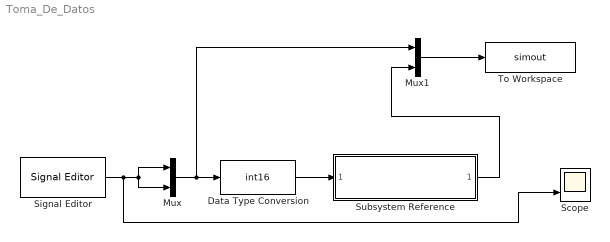
/*
 * Academic License - for use in teaching, academic research, and meeting
 * course requirements at degree granting institutions only.  Not for
 * government, commercial, or other organizational use.
 *
 * File: Toma_De_Datos.c
 *
 * Code generated for Simulink model 'Toma_De_Datos'.
 *
 * Model version                  : 1.5
 * Simulink Coder version         : 23.2 (R2023b) 01-Aug-2023
 * C/C++ source code generated on : Tue Nov 14 20:25:59 2023
 *
 * Target selection: ert.tlc
 * Embedded hardware selection: Atmel->AVR
 * Code generation objectives: Unspecified
 * Validation result: Not run
 */

#include "Toma_De_Datos.h"
#include <math.h>
#include "rt_nonfinite.h"
#include "rtwtypes.h"
#include "Toma_De_Datos_private.h"

/* Block signals (default storage) */
B_Toma_De_Datos_T Toma_De_Datos_B;

/* Block states (default storage) */
DW_Toma_De_Datos_T Toma_De_Datos_DW;

/* Real-time model */
static RT_MODEL_Toma_De_Datos_T Toma_De_Datos_M_;
RT_MODEL_Toma_De_Datos_T *const Toma_De_Datos_M = &Toma_De_Datos_M_;

/* Model step function */
void Toma_De_Datos_step(void)
{
  {
    real_T (*lastU)[2];
    real_T Gain_tmp;
    real_T lastTime_tmp;
    int32_T rtb_Encoder1_0;
    int32_T rtb_Encoder_0;
    int16_T rtb_DataTypeConversion_idx_0;
    int16_T rtb_DataTypeConversion_idx_1;
    int16_T y;

    /* MATLABSystem: '<S3>/Encoder' */
    if (Toma_De_Datos_DW.obj_i.SampleTime != Toma_De_Datos_P.Encoder_SampleTime)
    {
      Toma_De_Datos_DW.obj_i.SampleTime = Toma_De_Datos_P.Encoder_SampleTime;
    }

    if (Toma_De_Datos_DW.obj_i.TunablePropsChanged) {
      Toma_De_Datos_DW.obj_i.TunablePropsChanged = false;
    }

    MW_EncoderRead(Toma_De_Datos_DW.obj_i.Index, &rtb_Encoder_0);

    /* MATLABSystem: '<S3>/Encoder1' */
    if (Toma_De_Datos_DW.obj.SampleTime != Toma_De_Datos_P.Encoder1_SampleTime)
    {
      Toma_De_Datos_DW.obj.SampleTime = Toma_De_Datos_P.Encoder1_SampleTime;
    }

    if (Toma_De_Datos_DW.obj.TunablePropsChanged) {
      Toma_De_Datos_DW.obj.TunablePropsChanged = false;
    }

    MW_EncoderRead(Toma_De_Datos_DW.obj.Index, &rtb_Encoder1_0);

    /* Gain: '<S3>/Gain' */
    Gain_tmp = (real_T)Toma_De_Datos_P.Gain_Gain * 1.1368683772161603E-13;

    /* Gain: '<S3>/Gain' incorporates:
     *  MATLABSystem: '<S3>/Encoder'
     *  MATLABSystem: '<S3>/Encoder1'
     */
    Toma_De_Datos_B.Gain[0] = Gain_tmp * (real_T)rtb_Encoder_0;
    Toma_De_Datos_B.Gain[1] = Gain_tmp * (real_T)rtb_Encoder1_0;

    /* Derivative: '<S3>/Derivative' */
    Gain_tmp = Toma_De_Datos_M->Timing.t[0];
    if ((Toma_De_Datos_DW.TimeStampA >= Gain_tmp) &&
        (Toma_De_Datos_DW.TimeStampB >= Gain_tmp)) {
      /* Derivative: '<S3>/Derivative' */
      Toma_De_Datos_B.Derivative[0] = 0.0;
      Toma_De_Datos_B.Derivative[1] = 0.0;
    } else {
      lastTime_tmp = Toma_De_Datos_DW.TimeStampA;
      lastU = &Toma_De_Datos_DW.LastUAtTimeA;
      if (Toma_De_Datos_DW.TimeStampA < Toma_De_Datos_DW.TimeStampB) {
        if (Toma_De_Datos_DW.TimeStampB < Gain_tmp) {
          lastTime_tmp = Toma_De_Datos_DW.TimeStampB;
          lastU = &Toma_De_Datos_DW.LastUAtTimeB;
        }
      } else if (Toma_De_Datos_DW.TimeStampA >= Gain_tmp) {
        lastTime_tmp = Toma_De_Datos_DW.TimeStampB;
        lastU = &Toma_De_Datos_DW.LastUAtTimeB;
      }

      Gain_tmp -= lastTime_tmp;

      /* Derivative: '<S3>/Derivative' */
      Toma_De_Datos_B.Derivative[0] = (Toma_De_Datos_B.Gain[0] - (*lastU)[0]) /
        Gain_tmp;
      Toma_De_Datos_B.Derivative[1] = (Toma_De_Datos_B.Gain[1] - (*lastU)[1]) /
        Gain_tmp;
    }

    /* End of Derivative: '<S3>/Derivative' */

    /* FromWorkspace: '<S1>/fromWS_Signal 1' */
    {
      real_T *pDataValues = (real_T *)
        Toma_De_Datos_DW.fromWS_Signal1_PWORK.DataPtr;
      real_T *pTimeValues = (real_T *)
        Toma_De_Datos_DW.fromWS_Signal1_PWORK.TimePtr;
      int_T currTimeIndex = Toma_De_Datos_DW.fromWS_Signal1_IWORK.PrevIndex;
      real_T t = Toma_De_Datos_M->Timing.t[0];
      if (t > pTimeValues[1]) {
        Toma_De_Datos_B.Signal1 = 0.0;
      } else {
        /* Get index */
        if (t <= pTimeValues[0]) {
          currTimeIndex = 0;
        } else if (t >= pTimeValues[1]) {
          currTimeIndex = 0;
        } else {
          if (t < pTimeValues[currTimeIndex]) {
            while (t < pTimeValues[currTimeIndex]) {
              currTimeIndex--;
            }
          } else {
            while (t >= pTimeValues[currTimeIndex + 1]) {
              currTimeIndex++;
            }
          }
        }

        Toma_De_Datos_DW.fromWS_Signal1_IWORK.PrevIndex = currTimeIndex;

        /* Post output */
        {
          real_T t1 = pTimeValues[currTimeIndex];
          real_T t2 = pTimeValues[currTimeIndex + 1];
          if (t1 == t2) {
            if (t < t1) {
              Toma_De_Datos_B.Signal1 = pDataValues[currTimeIndex];
            } else {
              Toma_De_Datos_B.Signal1 = pDataValues[currTimeIndex + 1];
            }
          } else {
            real_T f1 = (t2 - t) / (t2 - t1);
            real_T f2 = 1.0 - f1;
            real_T d1;
            real_T d2;
            int_T TimeIndex = currTimeIndex;
            d1 = pDataValues[TimeIndex];
            d2 = pDataValues[TimeIndex + 1];
            Toma_De_Datos_B.Signal1 = (real_T) rtInterpolate(d1, d2, f1, f2);
            pDataValues += 2;
          }
        }
      }
    }

    /* SignalConversion generated from: '<Root>/To Workspace' */
    Toma_De_Datos_B.TmpSignalConversionAt_asyncqueu[0] = Toma_De_Datos_B.Signal1;
    Toma_De_Datos_B.TmpSignalConversionAt_asyncqueu[1] = Toma_De_Datos_B.Signal1;
    Toma_De_Datos_B.TmpSignalConversionAt_asyncqueu[2] =
      Toma_De_Datos_B.Derivative[0];
    Toma_De_Datos_B.TmpSignalConversionAt_asyncqueu[3] =
      Toma_De_Datos_B.Derivative[1];

    /* DataTypeConversion: '<Root>/Data Type Conversion' */
    Gain_tmp = floor(Toma_De_Datos_B.Signal1);
    if (rtIsNaN(Gain_tmp) || rtIsInf(Gain_tmp)) {
      lastTime_tmp = 0.0;
      Gain_tmp = 0.0;
    } else {
      lastTime_tmp = fmod(Gain_tmp, 65536.0);
      Gain_tmp = lastTime_tmp;
    }

    rtb_DataTypeConversion_idx_0 = lastTime_tmp < 0.0 ? -(int16_T)(uint16_T)
      -lastTime_tmp : (int16_T)(uint16_T)lastTime_tmp;
    rtb_DataTypeConversion_idx_1 = Gain_tmp < 0.0 ? -(int16_T)(uint16_T)
      -Gain_tmp : (int16_T)(uint16_T)Gain_tmp;

    /* End of DataTypeConversion: '<Root>/Data Type Conversion' */
    /* MATLABSystem: '<S4>/Adelante_der' */
    Toma_De_Datos_DW.obj_c.PWMDriverObj.MW_PWM_HANDLE = MW_PWM_GetHandle(12UL);

    /* Saturate: '<S4>/Saturation2' */
    if (rtb_DataTypeConversion_idx_1 > Toma_De_Datos_P.Saturation2_UpperSat) {
      y = Toma_De_Datos_P.Saturation2_UpperSat;
    } else if (rtb_DataTypeConversion_idx_1 <
               Toma_De_Datos_P.Saturation2_LowerSat) {
      y = Toma_De_Datos_P.Saturation2_LowerSat;
    } else {
      y = rtb_DataTypeConversion_idx_1;
    }

    /* End of Saturate: '<S4>/Saturation2' */

    /* Start for MATLABSystem: '<S4>/Adelante_der' */
    if (y > 255) {
      y = 255;
    }

    if (y < 0) {
      y = 0;
    }

    /* MATLABSystem: '<S4>/Adelante_der' */
    MW_PWM_SetDutyCycle(Toma_De_Datos_DW.obj_c.PWMDriverObj.MW_PWM_HANDLE,
                        (real_T)y);

    /* MATLABSystem: '<S4>/Adelante_izq' */
    Toma_De_Datos_DW.obj_e.PWMDriverObj.MW_PWM_HANDLE = MW_PWM_GetHandle(9UL);

    /* Saturate: '<S4>/Saturation4' */
    if (rtb_DataTypeConversion_idx_0 > Toma_De_Datos_P.Saturation4_UpperSat) {
      y = Toma_De_Datos_P.Saturation4_UpperSat;
    } else if (rtb_DataTypeConversion_idx_0 <
               Toma_De_Datos_P.Saturation4_LowerSat) {
      y = Toma_De_Datos_P.Saturation4_LowerSat;
    } else {
      y = rtb_DataTypeConversion_idx_0;
    }

    /* End of Saturate: '<S4>/Saturation4' */

    /* Abs: '<S4>/Abs2' */
    if (y < 0) {
      y = -y;
    }

    /* End of Abs: '<S4>/Abs2' */

    /* Start for MATLABSystem: '<S4>/Adelante_izq' */
    if (y > 255) {
      y = 255;
    }

    if (y < 0) {
      y = 0;
    }

    /* MATLABSystem: '<S4>/Adelante_izq' */
    MW_PWM_SetDutyCycle(Toma_De_Datos_DW.obj_e.PWMDriverObj.MW_PWM_HANDLE,
                        (real_T)y);

    /* MATLABSystem: '<S4>/Atras_der' */
    Toma_De_Datos_DW.obj_g.PWMDriverObj.MW_PWM_HANDLE = MW_PWM_GetHandle(11UL);

    /* Saturate: '<S4>/Saturation3' */
    if (rtb_DataTypeConversion_idx_1 > Toma_De_Datos_P.Saturation3_UpperSat) {
      y = Toma_De_Datos_P.Saturation3_UpperSat;
    } else if (rtb_DataTypeConversion_idx_1 <
               Toma_De_Datos_P.Saturation3_LowerSat) {
      y = Toma_De_Datos_P.Saturation3_LowerSat;
    } else {
      y = rtb_DataTypeConversion_idx_1;
    }

    /* End of Saturate: '<S4>/Saturation3' */

    /* Abs: '<S4>/Abs1' */
    if (y < 0) {
      y = -y;
    }

    /* End of Abs: '<S4>/Abs1' */

    /* Start for MATLABSystem: '<S4>/Atras_der' */
    if (y > 255) {
      y = 255;
    }

    if (y < 0) {
      y = 0;
    }

    /* MATLABSystem: '<S4>/Atras_der' */
    MW_PWM_SetDutyCycle(Toma_De_Datos_DW.obj_g.PWMDriverObj.MW_PWM_HANDLE,
                        (real_T)y);

    /* MATLABSystem: '<S4>/Atras_izq' */
    Toma_De_Datos_DW.obj_o.PWMDriverObj.MW_PWM_HANDLE = MW_PWM_GetHandle(10UL);

    /* Saturate: '<S4>/Saturation5' */
    if (rtb_DataTypeConversion_idx_0 > Toma_De_Datos_P.Saturation5_UpperSat) {
      y = Toma_De_Datos_P.Saturation5_UpperSat;
    } else if (rtb_DataTypeConversion_idx_0 <
               Toma_De_Datos_P.Saturation5_LowerSat) {
      y = Toma_De_Datos_P.Saturation5_LowerSat;
    } else {
      y = rtb_DataTypeConversion_idx_0;
    }

    /* End of Saturate: '<S4>/Saturation5' */

    /* Start for MATLABSystem: '<S4>/Atras_izq' */
    if (y > 255) {
      y = 255;
    }

    if (y < 0) {
      y = 0;
    }

    /* MATLABSystem: '<S4>/Atras_izq' */
    MW_PWM_SetDutyCycle(Toma_De_Datos_DW.obj_o.PWMDriverObj.MW_PWM_HANDLE,
                        (real_T)y);

    /* MATLABSystem: '<S4>/Digital Output' incorporates:
     *  Constant: '<S5>/Constant'
     *  RelationalOperator: '<S5>/Compare'
     */
    writeDigitalPin(8, (uint8_T)(rtb_DataTypeConversion_idx_0 !=
      Toma_De_Datos_P.Constant_Value));

    /* MATLABSystem: '<S4>/Digital Output1' incorporates:
     *  Constant: '<S6>/Constant'
     *  RelationalOperator: '<S6>/Compare'
     */
    writeDigitalPin(13, (uint8_T)(rtb_DataTypeConversion_idx_1 !=
      Toma_De_Datos_P.Constant_Value_c));
  }

  {
    real_T (*lastU)[2];

    /* Update for Derivative: '<S3>/Derivative' */
    if (Toma_De_Datos_DW.TimeStampA == (rtInf)) {
      Toma_De_Datos_DW.TimeStampA = Toma_De_Datos_M->Timing.t[0];
      lastU = &Toma_De_Datos_DW.LastUAtTimeA;
    } else if (Toma_De_Datos_DW.TimeStampB == (rtInf)) {
      Toma_De_Datos_DW.TimeStampB = Toma_De_Datos_M->Timing.t[0];
      lastU = &Toma_De_Datos_DW.LastUAtTimeB;
    } else if (Toma_De_Datos_DW.TimeStampA < Toma_De_Datos_DW.TimeStampB) {
      Toma_De_Datos_DW.TimeStampA = Toma_De_Datos_M->Timing.t[0];
      lastU = &Toma_De_Datos_DW.LastUAtTimeA;
    } else {
      Toma_De_Datos_DW.TimeStampB = Toma_De_Datos_M->Timing.t[0];
      lastU = &Toma_De_Datos_DW.LastUAtTimeB;
    }

    (*lastU)[0] = Toma_De_Datos_B.Gain[0];
    (*lastU)[1] = Toma_De_Datos_B.Gain[1];

    /* End of Update for Derivative: '<S3>/Derivative' */
  }

  {                                    /* Sample time: [0.0s, 0.0s] */
    extmodeErrorCode_T errorCode = EXTMODE_SUCCESS;
    extmodeSimulationTime_T currentTime = (extmodeSimulationTime_T)
      ((Toma_De_Datos_M->Timing.clockTick0 * 1) + 0)
      ;

    /* Trigger External Mode event */
    errorCode = extmodeEvent(0,currentTime);
    if (errorCode != EXTMODE_SUCCESS) {
      /* Code to handle External Mode event errors
         may be added here */
    }
  }

  {                                    /* Sample time: [0.1s, 0.0s] */
    extmodeErrorCode_T errorCode = EXTMODE_SUCCESS;
    extmodeSimulationTime_T currentTime = (extmodeSimulationTime_T)
      ((Toma_De_Datos_M->Timing.clockTick1 * 1) + 0)
      ;

    /* Trigger External Mode event */
    errorCode = extmodeEvent(1,currentTime);
    if (errorCode != EXTMODE_SUCCESS) {
      /* Code to handle External Mode event errors
         may be added here */
    }
  }

  /* Update absolute time for base rate */
  /* The "clockTick0" counts the number of times the code of this task has
   * been executed. The absolute time is the multiplication of "clockTick0"
   * and "Timing.stepSize0". Size of "clockTick0" ensures timer will not
   * overflow during the application lifespan selected.
   */
  Toma_De_Datos_M->Timing.t[0] =
    ((time_T)(++Toma_De_Datos_M->Timing.clockTick0)) *
    Toma_De_Datos_M->Timing.stepSize0;

  {
    /* Update absolute timer for sample time: [0.1s, 0.0s] */
    /* The "clockTick1" counts the number of times the code of this task has
     * been executed. The resolution of this integer timer is 0.1, which is the step size
     * of the task. Size of "clockTick1" ensures timer will not overflow during the
     * application lifespan selected.
     */
    Toma_De_Datos_M->Timing.clockTick1++;
  }
}
